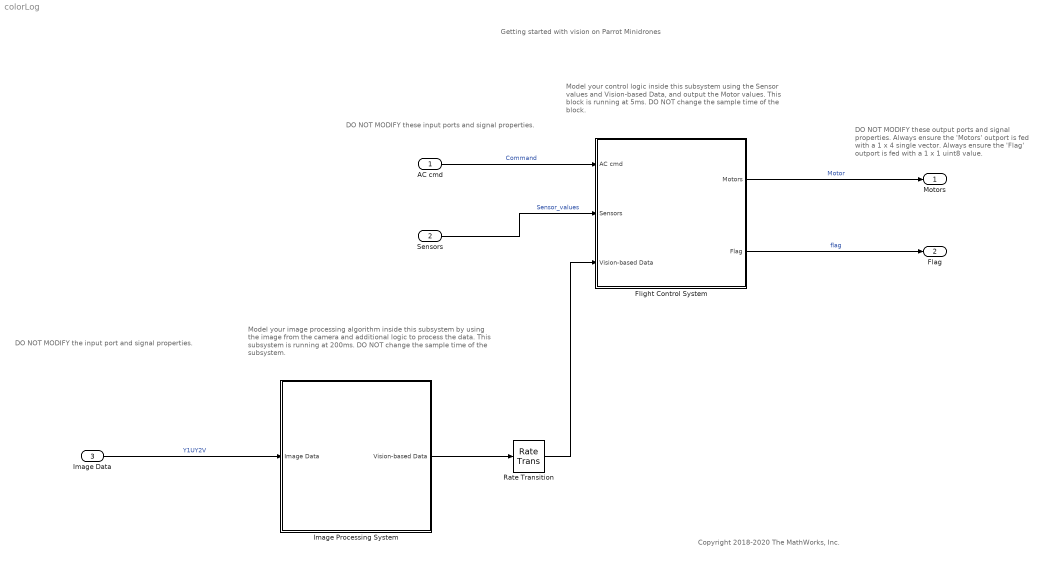
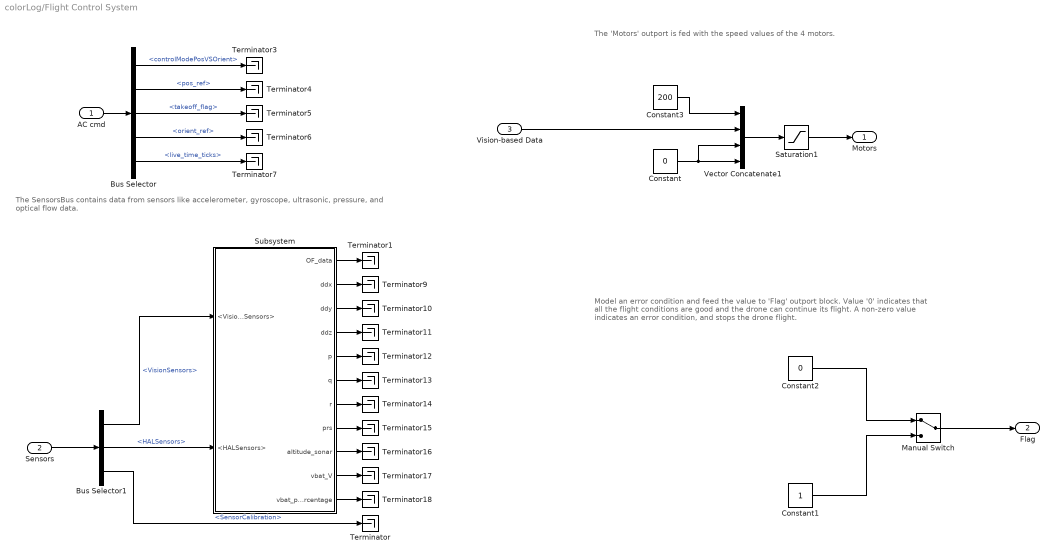
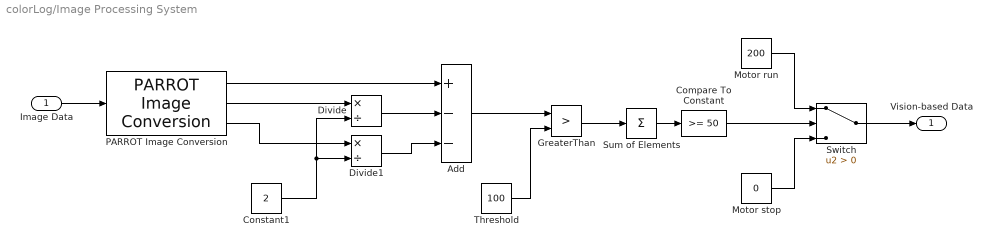
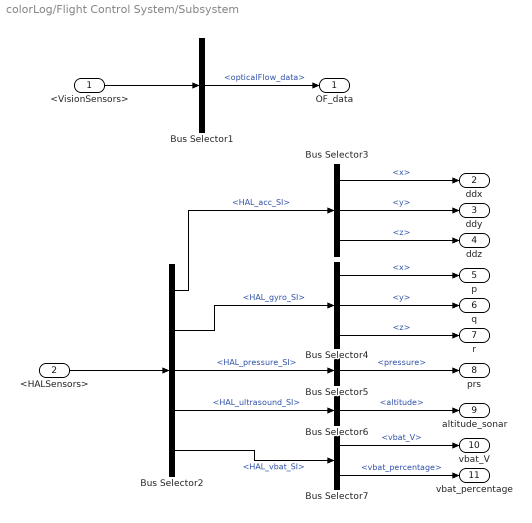
/*
 * colorLog.c
 *
 * Academic License - for use in teaching, academic research, and meeting
 * course requirements at degree granting institutions only.  Not for
 * government, commercial, or other organizational use.
 *
 * Code generation for model "colorLog".
 *
 * Model version              : 2.0
 * Simulink Coder version : 9.5 (R2021a) 14-Nov-2020
 * C source code generated on : Sat Apr 30 10:00:38 2022
 *
 * Target selection: ert.tlc
 * Note: GRT includes extra infrastructure and instrumentation for prototyping
 * Embedded hardware selection: ARM Compatible->ARM 9
 * Code generation objectives: Unspecified
 * Validation result: Not run
 */

#include "colorLog.h"
#include "colorLog_private.h"

/* Exported block signals */
CommandBus cmd_inport;                 /* '<Root>/AC cmd' */
SensorsBus sensor_inport;              /* '<Root>/Sensors' */
real32_T motors_outport[4];            /* '<Root>/Flight Control System' */
uint8_T flag_outport;                  /* '<Root>/Flight Control System' */

/* Block signals (default storage) */
B_colorLog_T colorLog_B;

/* Block states (default storage) */
DW_colorLog_T colorLog_DW;

/* External outputs (root outports fed by signals with default storage) */
ExtY_colorLog_T colorLog_Y;

/* Real-time model */
static RT_MODEL_colorLog_T colorLog_M_;
RT_MODEL_colorLog_T *const colorLog_M = &colorLog_M_;

/* Forward declaration for local functions */
static void colorLog_SystemCore_step(const uint8_T varargin_1[38400], uint8_T
  varargout_1[19200], uint8_T varargout_2[19200], uint8_T varargout_3[19200]);
static void rate_monotonic_scheduler(void);

/*
 * Set which subrates need to run this base step (base rate always runs).
 * This function must be called prior to calling the model step function
 * in order to "remember" which rates need to run this base step.  The
 * buffering of events allows for overlapping preemption.
 */
void colorLog_SetEventsForThisBaseStep(boolean_T *eventFlags)
{
  /* Task runs when its counter is zero, computed via rtmStepTask macro */
  eventFlags[1] = ((boolean_T)rtmStepTask(colorLog_M, 1));
}

/*
 *   This function updates active task flag for each subrate
 * and rate transition flags for tasks that exchange data.
 * The function assumes rate-monotonic multitasking scheduler.
 * The function must be called at model base rate so that
 * the generated code self-manages all its subrates and rate
 * transition flags.
 */
static void rate_monotonic_scheduler(void)
{
  /* Compute which subrates run during the next base time step.  Subrates
   * are an integer multiple of the base rate counter.  Therefore, the subtask
   * counter is reset when it reaches its limit (zero means run).
   */
  (colorLog_M->Timing.TaskCounters.TID[1])++;
  if ((colorLog_M->Timing.TaskCounters.TID[1]) > 39) {/* Sample time: [0.2s, 0.0s] */
    colorLog_M->Timing.TaskCounters.TID[1] = 0;
  }
}

/* Output and update for atomic system: '<Root>/Flight Control System' */
void colorLo_FlightControlSystem(real_T rty_0[4],
  B_FlightControlSystem_colorLo_T *localB, P_FlightControlSystem_colorLo_T
  *localP)
{
  /* SignalConversion generated from: '<S1>/Vector Concatenate1' incorporates:
   *  Constant: '<S1>/Constant'
   */
  rty_0[2] = localP->Constant_Value;

  /* SignalConversion generated from: '<S1>/Vector Concatenate1' incorporates:
   *  Constant: '<S1>/Constant'
   */
  rty_0[3] = localP->Constant_Value;

  /* Constant: '<S1>/Constant3' */
  rty_0[0] = localP->Constant3_Value;

  /* Saturate: '<S1>/Saturation1' */
  if (rty_0[0] > localP->Saturation1_UpperSat) {
    /* Saturate: '<S1>/Saturation1' */
    localB->Saturation1[0] = localP->Saturation1_UpperSat;
  } else if (rty_0[0] < localP->Saturation1_LowerSat) {
    /* Saturate: '<S1>/Saturation1' */
    localB->Saturation1[0] = localP->Saturation1_LowerSat;
  } else {
    /* Saturate: '<S1>/Saturation1' */
    localB->Saturation1[0] = (real32_T)rty_0[0];
  }

  if (rty_0[1] > localP->Saturation1_UpperSat) {
    /* Saturate: '<S1>/Saturation1' */
    localB->Saturation1[1] = localP->Saturation1_UpperSat;
  } else if (rty_0[1] < localP->Saturation1_LowerSat) {
    /* Saturate: '<S1>/Saturation1' */
    localB->Saturation1[1] = localP->Saturation1_LowerSat;
  } else {
    /* Saturate: '<S1>/Saturation1' */
    localB->Saturation1[1] = (real32_T)rty_0[1];
  }

  if (rty_0[2] > localP->Saturation1_UpperSat) {
    /* Saturate: '<S1>/Saturation1' */
    localB->Saturation1[2] = localP->Saturation1_UpperSat;
  } else if (rty_0[2] < localP->Saturation1_LowerSat) {
    /* Saturate: '<S1>/Saturation1' */
    localB->Saturation1[2] = localP->Saturation1_LowerSat;
  } else {
    /* Saturate: '<S1>/Saturation1' */
    localB->Saturation1[2] = (real32_T)rty_0[2];
  }

  if (rty_0[3] > localP->Saturation1_UpperSat) {
    /* Saturate: '<S1>/Saturation1' */
    localB->Saturation1[3] = localP->Saturation1_UpperSat;
  } else if (rty_0[3] < localP->Saturation1_LowerSat) {
    /* Saturate: '<S1>/Saturation1' */
    localB->Saturation1[3] = localP->Saturation1_LowerSat;
  } else {
    /* Saturate: '<S1>/Saturation1' */
    localB->Saturation1[3] = (real32_T)rty_0[3];
  }

  /* End of Saturate: '<S1>/Saturation1' */

  /* ManualSwitch: '<S1>/Manual Switch' */
  if (localP->ManualSwitch_CurrentSetting == 1) {
    /* ManualSwitch: '<S1>/Manual Switch' incorporates:
     *  Constant: '<S1>/Constant2'
     */
    localB->ManualSwitch = localP->Constant2_Value;
  } else {
    /* ManualSwitch: '<S1>/Manual Switch' incorporates:
     *  Constant: '<S1>/Constant1'
     */
    localB->ManualSwitch = localP->Constant1_Value;
  }

  /* End of ManualSwitch: '<S1>/Manual Switch' */
}

static void colorLog_SystemCore_step(const uint8_T varargin_1[38400], uint8_T
  varargout_1[19200], uint8_T varargout_2[19200], uint8_T varargout_3[19200])
{
  MW_Build_RGB(&varargin_1[0], &varargout_1[0], &varargout_2[0], &varargout_3[0]);
}

/* Model step function for TID0 */
void colorLog_step0(void)              /* Sample time: [0.005s, 0.0s] */
{
  {                                    /* Sample time: [0.005s, 0.0s] */
    rate_monotonic_scheduler();
  }

  /* RateTransition: '<Root>/Rate Transition' */
  colorLog_B.VectorConcatenate1[1] =
    colorLog_DW.RateTransition_Buffer[colorLog_DW.RateTransition_ActiveBufIdx];

  /* Outputs for Atomic SubSystem: '<Root>/Flight Control System' */
  colorLo_FlightControlSystem(colorLog_B.VectorConcatenate1,
    &colorLog_B.FlightControlSystem, &colorLog_P.FlightControlSystem);

  /* End of Outputs for SubSystem: '<Root>/Flight Control System' */

  /* SignalConversion generated from: '<Root>/Flight Control System' */
  motors_outport[0] = colorLog_B.FlightControlSystem.Saturation1[0];
  motors_outport[1] = colorLog_B.FlightControlSystem.Saturation1[1];
  motors_outport[2] = colorLog_B.FlightControlSystem.Saturation1[2];
  motors_outport[3] = colorLog_B.FlightControlSystem.Saturation1[3];

  /* Outport: '<Root>/Motors' incorporates:
   *  SignalConversion generated from: '<Root>/Flight Control System'
   */
  colorLog_Y.Motors[0] = motors_outport[0];
  colorLog_Y.Motors[1] = motors_outport[1];
  colorLog_Y.Motors[2] = motors_outport[2];
  colorLog_Y.Motors[3] = motors_outport[3];

  /* SignalConversion generated from: '<Root>/Flight Control System' */
  flag_outport = colorLog_B.FlightControlSystem.ManualSwitch;

  /* Outport: '<Root>/Flag' */
  colorLog_Y.Flag = flag_outport;

  /* Matfile logging */
  rt_UpdateTXYLogVars(colorLog_M->rtwLogInfo, (&colorLog_M->Timing.taskTime0));

  /* signal main to stop simulation */
  {                                    /* Sample time: [0.005s, 0.0s] */
    if ((rtmGetTFinal(colorLog_M)!=-1) &&
        !((rtmGetTFinal(colorLog_M)-colorLog_M->Timing.taskTime0) >
          colorLog_M->Timing.taskTime0 * (DBL_EPSILON))) {
      rtmSetErrorStatus(colorLog_M, "Simulation finished");
    }
  }

  /* Update absolute time */
  /* The "clockTick0" counts the number of times the code of this task has
   * been executed. The absolute time is the multiplication of "clockTick0"
   * and "Timing.stepSize0". Size of "clockTick0" ensures timer will not
   * overflow during the application lifespan selected.
   * Timer of this task consists of two 32 bit unsigned integers.
   * The two integers represent the low bits Timing.clockTick0 and the high bits
   * Timing.clockTickH0. When the low bit overflows to 0, the high bits increment.
   */
  if (!(++colorLog_M->Timing.clockTick0)) {
    ++colorLog_M->Timing.clockTickH0;
  }

  colorLog_M->Timing.taskTime0 = colorLog_M->Timing.clockTick0 *
    colorLog_M->Timing.stepSize0 + colorLog_M->Timing.clockTickH0 *
    colorLog_M->Timing.stepSize0 * 4294967296.0;
}

/* Model step function for TID1 */
void colorLog_step1(void)              /* Sample time: [0.2s, 0.0s] */
{
  real_T rtb_Switch;
  int32_T i;
  uint32_T tmp;

  /* Outputs for Atomic SubSystem: '<Root>/Image Processing System' */
  /* MATLABSystem: '<S2>/PARROT Image Conversion ' incorporates:
   *  Inport: '<Root>/Image Data'
   */
  colorLog_SystemCore_step(imRGB, colorLog_B.PARROTImageConversion_o1,
    colorLog_B.PARROTImageConversion_o2, colorLog_B.PARROTImageConversion_o3);

  /* ToWorkspace: '<S2>/To Workspace' */
  {
    double locTime = (((colorLog_M->Timing.clockTick1+
                        colorLog_M->Timing.clockTickH1* 4294967296.0)) * 0.2);
    ;
    rt_UpdateStructLogVar((StructLogVar *)
                          colorLog_DW.ToWorkspace_PWORK.LoggedData, &locTime,
                          &colorLog_B.PARROTImageConversion_o1[0]);
  }

  /* ToWorkspace: '<S2>/To Workspace1' */
  {
    double locTime = (((colorLog_M->Timing.clockTick1+
                        colorLog_M->Timing.clockTickH1* 4294967296.0)) * 0.2);
    ;
    rt_UpdateStructLogVar((StructLogVar *)
                          colorLog_DW.ToWorkspace1_PWORK.LoggedData, &locTime,
                          &colorLog_B.PARROTImageConversion_o2[0]);
  }

  /* ToWorkspace: '<S2>/To Workspace2' */
  {
    double locTime = (((colorLog_M->Timing.clockTick1+
                        colorLog_M->Timing.clockTickH1* 4294967296.0)) * 0.2);
    ;
    rt_UpdateStructLogVar((StructLogVar *)
                          colorLog_DW.ToWorkspace2_PWORK.LoggedData, &locTime,
                          &colorLog_B.PARROTImageConversion_o3[0]);
  }

  /* Sum: '<S2>/Sum of Elements ' */
  tmp = 0U;
  for (i = 0; i < 19200; i++) {
    /* Sum: '<S2>/Sum of Elements ' incorporates:
     *  Constant: '<S2>/Constant1'
     *  Constant: '<S2>/Threshold'
     *  MATLABSystem: '<S2>/PARROT Image Conversion '
     *  Product: '<S2>/Divide'
     *  Product: '<S2>/Divide1'
     *  RelationalOperator: '<S2>/GreaterThan '
     *  Sum: '<S2>/Add'
     */
    tmp += (((real_T)colorLog_B.PARROTImageConversion_o1[i] - (real_T)
             colorLog_B.PARROTImageConversion_o2[i] / colorLog_P.Constant1_Value)
            - (real_T)colorLog_B.PARROTImageConversion_o3[i] /
            colorLog_P.Constant1_Value > colorLog_P.Threshold_Value);
  }

  /* Switch: '<S2>/Switch' incorporates:
   *  Constant: '<S2>/Motor run'
   *  Constant: '<S2>/Motor stop'
   *  Constant: '<S4>/Constant'
   *  RelationalOperator: '<S4>/Compare'
   *  Sum: '<S2>/Sum of Elements '
   */
  if ((uint8_T)tmp >= colorLog_P.CompareToConstant_const) {
    rtb_Switch = colorLog_P.Motorrun_Value;
  } else {
    rtb_Switch = colorLog_P.Motorstop_Value;
  }

  /* End of Switch: '<S2>/Switch' */
  /* End of Outputs for SubSystem: '<Root>/Image Processing System' */

  /* RateTransition: '<Root>/Rate Transition' */
  colorLog_DW.RateTransition_Buffer[colorLog_DW.RateTransition_ActiveBufIdx == 0]
    = rtb_Switch;
  colorLog_DW.RateTransition_ActiveBufIdx = (int8_T)
    (colorLog_DW.RateTransition_ActiveBufIdx == 0);

  /* Update absolute time */
  /* The "clockTick1" counts the number of times the code of this task has
   * been executed. The resolution of this integer timer is 0.2, which is the step size
   * of the task. Size of "clockTick1" ensures timer will not overflow during the
   * application lifespan selected.
   * Timer of this task consists of two 32 bit unsigned integers.
   * The two integers represent the low bits Timing.clockTick1 and the high bits
   * Timing.clockTickH1. When the low bit overflows to 0, the high bits increment.
   */
  colorLog_M->Timing.clockTick1++;
  if (!colorLog_M->Timing.clockTick1) {
    colorLog_M->Timing.clockTickH1++;
  }
}
